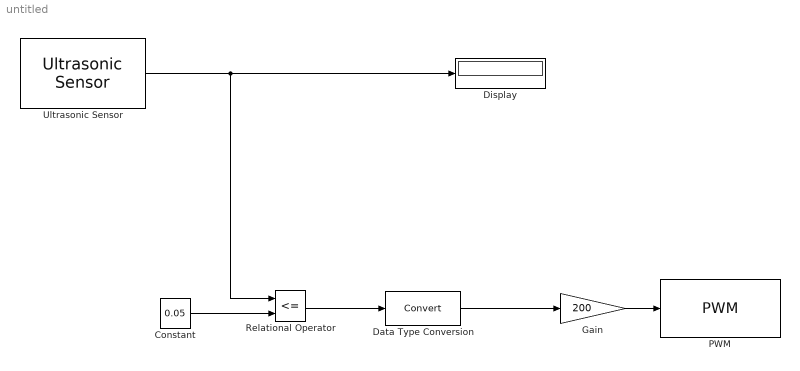
/*
 * untitled.c
 *
 * Academic License - for use in teaching, academic research, and meeting
 * course requirements at degree granting institutions only.  Not for
 * government, commercial, or other organizational use.
 *
 * Code generation for model "untitled".
 *
 * Model version              : 1.0
 * Simulink Coder version : 9.9 (R2023a) 19-Nov-2022
 * C source code generated on : Mon Oct  9 13:49:56 2023
 *
 * Target selection: ert.tlc
 * Note: GRT includes extra infrastructure and instrumentation for prototyping
 * Embedded hardware selection: ARM Compatible->ARM Cortex
 * Code generation objectives: Unspecified
 * Validation result: Not run
 */

#include "untitled.h"
#include "untitled_types.h"
#include "rtwtypes.h"
#include "untitled_private.h"
#include <string.h>

/* Block signals (default storage) */
B_untitled_T untitled_B;

/* Block states (default storage) */
DW_untitled_T untitled_DW;

/* Real-time model */
static RT_MODEL_untitled_T untitled_M_;
RT_MODEL_untitled_T *const untitled_M = &untitled_M_;

/* Model step function */
void untitled_step(void)
{
  codertarget_arduinobase_inter_T *obj;
  real_T u0;
  uint32_T duration;

  /* MATLABSystem: '<Root>/Ultrasonic Sensor' */
  if (untitled_DW.obj_g.TunablePropsChanged) {
    untitled_DW.obj_g.TunablePropsChanged = false;
  }

  MW_UltrasonicRead(&duration, 1, 6, 7, 10);

  /* MATLABSystem: '<Root>/Ultrasonic Sensor' */
  untitled_B.UltrasonicSensor = (real_T)duration * 0.000343 / 2.0;

  /* MATLABSystem: '<Root>/PWM' */
  obj = &untitled_DW.obj;
  obj->PWMDriverObj.MW_PWM_HANDLE = MW_PWM_GetHandle(17U);

  /* Gain: '<Root>/Gain' incorporates:
   *  Constant: '<Root>/Constant'
   *  DataTypeConversion: '<Root>/Data Type Conversion'
   *  RelationalOperator: '<Root>/Relational Operator'
   */
  u0 = (real_T)(untitled_B.UltrasonicSensor <= untitled_P.Constant_Value) *
    untitled_P.Gain_Gain;

  /* MATLABSystem: '<Root>/PWM' */
  if (!(u0 <= 255.0)) {
    u0 = 255.0;
  }

  if (!(u0 >= 0.0)) {
    u0 = 0.0;
  }

  MW_PWM_SetDutyCycle(untitled_DW.obj.PWMDriverObj.MW_PWM_HANDLE, u0);

  {                                    /* Sample time: [1.0s, 0.0s] */
  }

  /* Update absolute time for base rate */
  /* The "clockTick0" counts the number of times the code of this task has
   * been executed. The absolute time is the multiplication of "clockTick0"
   * and "Timing.stepSize0". Size of "clockTick0" ensures timer will not
   * overflow during the application lifespan selected.
   * Timer of this task consists of two 32 bit unsigned integers.
   * The two integers represent the low bits Timing.clockTick0 and the high bits
   * Timing.clockTickH0. When the low bit overflows to 0, the high bits increment.
   */
  if (!(++untitled_M->Timing.clockTick0)) {
    ++untitled_M->Timing.clockTickH0;
  }

  untitled_M->Timing.taskTime0 = untitled_M->Timing.clockTick0 *
    untitled_M->Timing.stepSize0 + untitled_M->Timing.clockTickH0 *
    untitled_M->Timing.stepSize0 * 4294967296.0;
}
